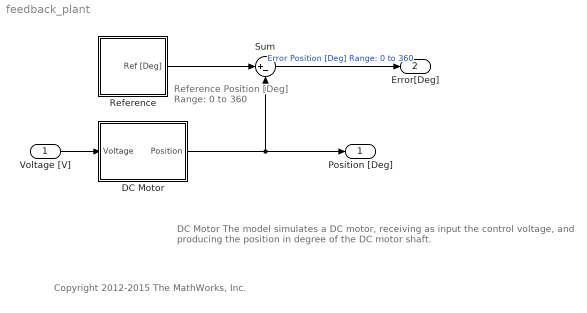
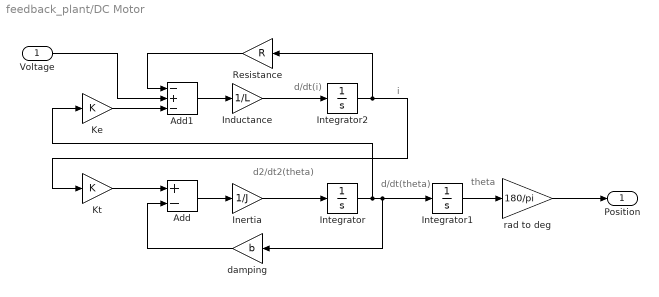
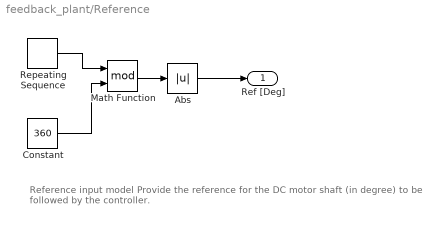
/*
 * feedback_plant.c
 *
 * Academic License - for use in teaching, academic research, and meeting
 * course requirements at degree granting institutions only.  Not for
 * government, commercial, or other organizational use.
 *
 * Code generation for model "feedback_plant".
 *
 * Model version              : 1.30
 * Simulink Coder version : 8.10 (R2016a) 10-Feb-2016
 * C source code generated on : Tue Jul 18 02:04:25 2017
 *
 * Target selection: NIVeriStand.tlc
 * Note: GRT includes extra infrastructure and instrumentation for prototyping
 * Embedded hardware selection: Intel->x86/Pentium
 * Code generation objectives: Unspecified
 * Validation result: Not run
 */

#include "feedback_plant.h"
#include "feedback_plant_private.h"

/* Block signals (auto storage) */
B_feedback_plant_T feedback_plant_B;

/* Continuous states */
X_feedback_plant_T feedback_plant_X;

/* External inputs (root inport signals with auto storage) */
ExtU_feedback_plant_T feedback_plant_U;

/* External outputs (root outports fed by signals with auto storage) */
ExtY_feedback_plant_T feedback_plant_Y;

/* Real-time model */
RT_MODEL_feedback_plant_T feedback_plant_M_;
RT_MODEL_feedback_plant_T *const feedback_plant_M = &feedback_plant_M_;
real_T look1_binlxpw(real_T u0, const real_T bp0[], const real_T table[],
                     uint32_T maxIndex)
{
  real_T frac;
  uint32_T iRght;
  uint32_T iLeft;
  uint32_T bpIdx;

  /* Lookup 1-D
     Search method: 'binary'
     Use previous index: 'off'
     Interpolation method: 'Linear'
     Extrapolation method: 'Linear'
     Use last breakpoint for index at or above upper limit: 'off'
     Remove protection against out-of-range input in generated code: 'off'
   */
  /* Prelookup - Index and Fraction
     Index Search method: 'binary'
     Extrapolation method: 'Linear'
     Use previous index: 'off'
     Use last breakpoint for index at or above upper limit: 'off'
     Remove protection against out-of-range input in generated code: 'off'
   */
  if (u0 <= bp0[0U]) {
    iLeft = 0U;
    frac = (u0 - bp0[0U]) / (bp0[1U] - bp0[0U]);
  } else if (u0 < bp0[maxIndex]) {
    /* Binary Search */
    bpIdx = maxIndex >> 1U;
    iLeft = 0U;
    iRght = maxIndex;
    while (iRght - iLeft > 1U) {
      if (u0 < bp0[bpIdx]) {
        iRght = bpIdx;
      } else {
        iLeft = bpIdx;
      }

      bpIdx = (iRght + iLeft) >> 1U;
    }

    frac = (u0 - bp0[iLeft]) / (bp0[iLeft + 1U] - bp0[iLeft]);
  } else {
    iLeft = maxIndex - 1U;
    frac = (u0 - bp0[maxIndex - 1U]) / (bp0[maxIndex] - bp0[maxIndex - 1U]);
  }

  /* Interpolation 1-D
     Interpolation method: 'Linear'
     Use last breakpoint for index at or above upper limit: 'off'
     Overflow mode: 'portable wrapping'
   */
  return (table[iLeft + 1U] - table[iLeft]) * frac + table[iLeft];
}

/* Simplified version of numjac.cpp, for use with RTW. */
void local_numjac( RTWSolverInfo *si, real_T *y, const real_T *Fty, real_T *fac,
                  real_T *dFdy )
{
  /* constants */
  real_T THRESH = 1e-6;
  real_T EPS = 2.2e-16;                /* utGetEps(); */
  real_T BL = pow(EPS, 0.75);
  real_T BU = pow(EPS, 0.25);
  real_T FACMIN = pow(EPS, 0.78);
  real_T FACMAX = 0.1;
  int_T nx = 3;
  real_T *x = rtsiGetContStates(si);
  real_T del;
  real_T difmax;
  real_T FdelRowmax;
  real_T temp;
  real_T Fdiff;
  real_T maybe;
  real_T xscale;
  real_T fscale;
  real_T *p;
  int_T rowmax;
  int_T i,j;
  if (x != y)
    (void) memcpy(x, y,
                  (uint_T)nx*sizeof(real_T));
  rtsiSetSolverComputingJacobian(si,true);
  for (p = dFdy, j = 0; j < nx; j++, p += nx) {
    /* Select an increment del for a difference approximation to
       column j of dFdy.  The vector fac accounts for experience
       gained in previous calls to numjac. */
    xscale = fabs(x[j]);
    if (xscale < THRESH)
      xscale = THRESH;
    temp = (x[j] + fac[j]*xscale);
    del = temp - y[j];
    while (del == 0.0) {
      if (fac[j] < FACMAX) {
        fac[j] *= 100.0;
        if (fac[j] > FACMAX)
          fac[j] = FACMAX;
        temp = (x[j] + fac[j]*xscale);
        del = temp - x[j];
      } else {
        del = THRESH;                  /* thresh is nonzero */
        break;
      }
    }

    /* Keep del pointing into region. */
    if (Fty[j] >= 0.0)
      del = fabs(del);
    else
      del = -fabs(del);

    /* Form a difference approximation to column j of dFdy. */
    temp = x[j];
    x[j] += del;
    feedback_plant_output();
    rtsiSetdX(si,p);
    feedback_plant_derivatives();
    x[j] = temp;
    difmax = 0.0;
    rowmax = 0;
    FdelRowmax = p[0];
    temp = 1.0 / del;
    for (i = 0; i < nx; i++) {
      Fdiff = p[i] - Fty[i];
      maybe = fabs(Fdiff);
      if (maybe > difmax) {
        difmax = maybe;
        rowmax = i;
        FdelRowmax = p[i];
      }

      p[i] = temp * Fdiff;
    }

    /* Adjust fac for next call to numjac. */
    if (((FdelRowmax != 0.0) && (Fty[rowmax] != 0.0)) || (difmax == 0.0)) {
      fscale = fabs(FdelRowmax);
      if (fscale < fabs(Fty[rowmax]))
        fscale = fabs(Fty[rowmax]);
      if (difmax <= BL*fscale) {
        /* The difference is small, so increase the increment. */
        fac[j] *= 10.0;
        if (fac[j] > FACMAX)
          fac[j] = FACMAX;
      } else if (difmax > BU*fscale) {
        /* The difference is large, so reduce the increment. */
        fac[j] *= 0.1;
        if (fac[j] < FACMIN)
          fac[j] = FACMIN;
      }
    }
  }

  rtsiSetSolverComputingJacobian(si,false);
}                                      /* end local_numjac */

/*
 * This function updates continuous states using the ODE14x fixed-step
 * solver algorithm
 */
static void rt_ertODEUpdateContinuousStates(RTWSolverInfo *si )
{
  /* Solver Matrices */
  static int_T rt_ODE14x_N[4] = { 12, 8, 6, 4 };

  time_T t0 = rtsiGetT(si);
  time_T t1 = t0;
  time_T h = rtsiGetStepSize(si);
  real_T *x1 = rtsiGetContStates(si);
  int_T order = rtsiGetSolverExtrapolationOrder(si);
  int_T numIter = rtsiGetSolverNumberNewtonIterations(si);
  ODE14X_IntgData *id = (ODE14X_IntgData *)rtsiGetSolverData(si);
  real_T *x0 = id->x0;
  real_T *f0 = id->f0;
  real_T *x1start = id->x1start;
  real_T *f1 = id->f1;
  real_T *Delta = id->Delta;
  real_T *E = id->E;
  real_T *fac = id->fac;
  real_T *dfdx = id->DFDX;
  real_T *W = id->W;
  int_T *pivots = id->pivots;
  real_T *xtmp = id->xtmp;
  real_T *ztmp = id->ztmp;
  int_T *N = &(rt_ODE14x_N[0]);
  int_T i,j,k,iter;
  int_T nx = 3;
  rtsiSetSimTimeStep(si,MINOR_TIME_STEP);

  /* Save the state values at time t in y, we'll use x as ynew. */
  (void) memcpy(x0, x1,
                (uint_T)nx*sizeof(real_T));

  /* Assumes that rtsiSetT and ModelOutputs are up-to-date */

  /* f0 = f(t,y) */
  rtsiSetdX(si, f0);
  feedback_plant_derivatives();
  local_numjac(si,x0,f0,fac,dfdx );
  for (j = 0; j < order; j++) {
    real_T *p;
    real_T hN = h/N[j];

    /* Get the iteration matrix and solution at t0 */

    /* [L,U] = lu(M - hN*J) */
    (void) memcpy(W, dfdx,
                  (uint_T)nx*nx*sizeof(real_T));
    for (p = W, i = 0; i < nx*nx; i++, p++) {
      *p *= (-hN);
    }

    for (p = W, i = 0; i < nx; i++, p += (nx+1)) {
      *p += 1.0;
    }

    rt_lu_real(W, nx,
               pivots);

    /* First Newton's iteration at t0. */
    /* rhs = hN*f0 */
    for (i = 0; i < nx; i++) {
      Delta[i] = hN*f0[i];
    }

    /* Delta = (U \ (L \ rhs)) */
    rt_ForwardSubstitutionRR_Dbl(W, Delta,
      f1, nx,
      1, pivots,
      1);
    rt_BackwardSubstitutionRR_Dbl(W+nx*nx-1, f1+nx-1,
      Delta, nx,
      1, 0);

    /* ytmp = y0 + Delta
       ztmp = (ytmp-y0)/h
     */
    (void) memcpy(x1, x0,
                  (uint_T)nx*sizeof(real_T));
    for (i = 0; i < nx; i++) {
      x1[i] += Delta[i];
      ztmp[i] = Delta[i]/hN;
    }

    /* Additional Newton's iterations, if desired.
       for iter = 2:NewtIter
       rhs = hN*feval(odefun,tn,ytmp,extraArgs{:}) - M*(ytmp - yn);
       if statedepM   % only for state dep. Mdel ~= 0
       Mdel = M - feval(massfun,tn,ytmp);
       rhs = rhs + Mdel*ztmp*h;
       end
       Delta = ( U \ ( L \ rhs ) );
       ytmp = ytmp + Delta;
       ztmp = (ytmp - yn)/h
       end
     */
    rtsiSetT(si, t0);
    rtsiSetdX(si, f1);
    for (iter = 1; iter < numIter; iter++) {
      feedback_plant_output();
      feedback_plant_derivatives();
      for (i = 0; i < nx; i++) {
        Delta[i] = hN*f1[i];
        xtmp[i] = x1[i] - x0[i];
      }

      /* rhs = hN*f(tn,ytmp) - (ytmp-yn) */
      for (i = 0; i < nx; i++) {
        Delta[i] -= xtmp[i];
      }

      rt_ForwardSubstitutionRR_Dbl(W, Delta,
        f1, nx,
        1, pivots,
        1);
      rt_BackwardSubstitutionRR_Dbl(W+nx*nx-1, f1+nx-1,
        Delta, nx,
        1, 0);

      /* ytmp = ytmp + delta
         ztmp = (ytmp - yn)/h
       */
      for (i = 0; i < nx; i++) {
        x1[i] += Delta[i];
        ztmp[i] = (x1[i] - x0[i])/hN;
      }
    }

    /* Steps from t0+hN to t1 -- subintegration of N(j) steps for extrapolation
       ttmp = t0;
       for i = 2:N(j)
       ttmp = ttmp + hN
       ytmp0 = ytmp;
       for iter = 1:NewtIter
       rhs = (ytmp0 - ytmp) + hN*feval(odefun,ttmp,ytmp,extraArgs{:});
       Delta = ( U \ ( L \ rhs ) );
       ytmp = ytmp + Delta;
       end
       end
     */
    for (k = 1; k < N[j]; k++) {
      t1 = t0 + k*hN;
      (void) memcpy(x1start, x1,
                    (uint_T)nx*sizeof(real_T));
      rtsiSetT(si, t1);
      rtsiSetdX(si, f1);
      for (iter = 0; iter < numIter; iter++) {
        feedback_plant_output();
        feedback_plant_derivatives();
        if (iter == 0) {
          for (i = 0; i < nx; i++) {
            Delta[i] = hN*f1[i];
          }
        } else {
          for (i = 0; i < nx; i++) {
            Delta[i] = hN*f1[i];
            xtmp[i] = (x1[i]-x1start[i]);
          }

          /* rhs = hN*f(tn,ytmp) - M*(ytmp-yn) */
          for (i = 0; i < nx; i++) {
            Delta[i] -= xtmp[i];
          }
        }

        rt_ForwardSubstitutionRR_Dbl(W, Delta,
          f1, nx,
          1, pivots,
          1);
        rt_BackwardSubstitutionRR_Dbl(W+nx*nx-1, f1+nx-1,
          Delta, nx,
          1, 0);

        /* ytmp = ytmp + Delta
           ztmp = (ytmp - ytmp0)/h
         */
        for (i = 0; i < nx; i++) {
          x1[i] += Delta[i];
          ztmp[i] = (x1[i] - x1start[i])/hN;
        }
      }
    }

    /* Extrapolate to order j
       E(:,j) = ytmp
       for k = j:-1:2
       coef = N(k-1)/(N(j) - N(k-1))
       E(:,k-1) = E(:,k) + coef*( E(:,k) - E(:,k-1) )
       end
     */
    (void) memcpy(&(E[nx*j]), x1,
                  (uint_T)nx*sizeof(real_T));
    for (k = j; k > 0; k--) {
      real_T coef = (real_T)(N[k-1]) / (N[j]-N[k-1]);
      for (i = 0; i < nx; i++) {
        x1[i] = E[nx*k+i] + coef*(E[nx*k+i] - E[nx*(k-1)+i]);
      }

      (void) memcpy(&(E[nx*(k-1)]), x1,
                    (uint_T)nx*sizeof(real_T));
    }
  }

  /* x1 = E(:,1); */
  (void) memcpy(x1, E,
                (uint_T)nx*sizeof(real_T));

  /* t1 = t0 + h; */
  rtsiSetT(si,rtsiGetSolverStopTime(si));
  rtsiSetSimTimeStep(si,MAJOR_TIME_STEP);
}

real_T rt_roundd_snf(real_T u)
{
  real_T y;
  if (fabs(u) < 4.503599627370496E+15) {
    if (u >= 0.5) {
      y = floor(u + 0.5);
    } else if (u > -0.5) {
      y = u * 0.0;
    } else {
      y = ceil(u - 0.5);
    }
  } else {
    y = u;
  }

  return y;
}

real_T rt_remd_snf(real_T u0, real_T u1)
{
  real_T y;
  real_T u1_0;
  if (!((!rtIsNaN(u0)) && (!rtIsInf(u0)) && ((!rtIsNaN(u1)) && (!rtIsInf(u1)))))
  {
    y = (rtNaN);
  } else {
    if (u1 < 0.0) {
      u1_0 = ceil(u1);
    } else {
      u1_0 = floor(u1);
    }

    if ((u1 != 0.0) && (u1 != u1_0)) {
      u1_0 = u0 / u1;
      if (fabs(u1_0 - rt_roundd_snf(u1_0)) <= DBL_EPSILON * fabs(u1_0)) {
        y = 0.0;
      } else {
        y = fmod(u0, u1);
      }
    } else {
      y = fmod(u0, u1);
    }
  }

  return y;
}

real_T rt_modd_snf(real_T u0, real_T u1)
{
  real_T y;
  real_T tmp;
  if (u1 == 0.0) {
    y = u0;
  } else if (!((!rtIsNaN(u0)) && (!rtIsInf(u0)) && ((!rtIsNaN(u1)) && (!rtIsInf
                (u1))))) {
    y = (rtNaN);
  } else {
    tmp = u0 / u1;
    if (u1 <= floor(u1)) {
      y = u0 - floor(tmp) * u1;
    } else if (fabs(tmp - rt_roundd_snf(tmp)) <= DBL_EPSILON * fabs(tmp)) {
      y = 0.0;
    } else {
      y = (tmp - floor(tmp)) * u1;
    }
  }

  return y;
}

/* Model output function */
void feedback_plant_output(void)
{
  /* local block i/o variables */
  real_T rtb_MathFunction;
  if (rtmIsMajorTimeStep(feedback_plant_M)) {
    /* set solver stop time */
    if (!(feedback_plant_M->Timing.clockTick0+1)) {
      rtsiSetSolverStopTime(&feedback_plant_M->solverInfo,
                            ((feedback_plant_M->Timing.clockTickH0 + 1) *
        feedback_plant_M->Timing.stepSize0 * 4294967296.0));
    } else {
      rtsiSetSolverStopTime(&feedback_plant_M->solverInfo,
                            ((feedback_plant_M->Timing.clockTick0 + 1) *
        feedback_plant_M->Timing.stepSize0 +
        feedback_plant_M->Timing.clockTickH0 *
        feedback_plant_M->Timing.stepSize0 * 4294967296.0));
    }
  }                                    /* end MajorTimeStep */

  /* Update absolute time of base rate at minor time step */
  if (rtmIsMinorTimeStep(feedback_plant_M)) {
    feedback_plant_M->Timing.t[0] = rtsiGetT(&feedback_plant_M->solverInfo);
  }

  /* Integrator: '<S1>/Integrator1' */
  feedback_plant_B.Integrator1 = feedback_plant_X.Integrator1_CSTATE;

  /* Gain: '<S1>/rad to deg' */
  feedback_plant_B.radtodeg = 57.295779513082323 * feedback_plant_B.Integrator1;

  /* Outport: '<Root>/Position [Deg]' */
  feedback_plant_Y.PositionDeg = feedback_plant_B.radtodeg;

  /* Clock: '<S3>/Clock' */
  rtb_MathFunction = feedback_plant_M->Timing.t[0];

  /* Sum: '<S3>/Sum' incorporates:
   *  S-Function (sfun_tstart): '<S3>/startTime'
   */
  feedback_plant_B.Sum = rtb_MathFunction - (0.0);

  /* Math: '<S3>/Math Function' incorporates:
   *  Constant: '<S3>/Constant'
   */
  rtb_MathFunction = rt_remd_snf(feedback_plant_B.Sum, 4.0);

  /* Lookup_n-D: '<S3>/Look-Up Table1' */
  rtb_MathFunction = look1_binlxpw(rtb_MathFunction,
    feedback_plant_ConstP.LookUpTable1_bp01Data,
    feedback_plant_ConstP.LookUpTable1_tableData, 4U);

  /* Math: '<S2>/Math Function' incorporates:
   *  Constant: '<S2>/Constant'
   */
  rtb_MathFunction = rt_modd_snf(rtb_MathFunction, 360.0);

  /* Abs: '<S2>/Abs' */
  feedback_plant_B.Abs = fabs(rtb_MathFunction);

  /* Sum: '<Root>/Sum' */
  feedback_plant_B.ErrorPositionDegRange0to360 = feedback_plant_B.Abs -
    feedback_plant_B.radtodeg;

  /* Outport: '<Root>/Error[Deg]' */
  feedback_plant_Y.ErrorDeg = feedback_plant_B.ErrorPositionDegRange0to360;

  /* Integrator: '<S1>/Integrator2' */
  feedback_plant_B.Integrator2 = feedback_plant_X.Integrator2_CSTATE;

  /* Gain: '<S1>/Kt' */
  feedback_plant_B.Kt = 0.0274 * feedback_plant_B.Integrator2;

  /* Integrator: '<S1>/Integrator' */
  feedback_plant_B.Integrator = feedback_plant_X.Integrator_CSTATE;

  /* Gain: '<S1>/damping' */
  feedback_plant_B.damping = 3.5066E-6 * feedback_plant_B.Integrator;

  /* Sum: '<S1>/Add' */
  feedback_plant_B.Add = feedback_plant_B.Kt - feedback_plant_B.damping;

  /* Gain: '<S1>/Resistance' */
  feedback_plant_B.Resistance = 4.0 * feedback_plant_B.Integrator2;

  /* Gain: '<S1>/Ke' */
  feedback_plant_B.Ke = 0.0274 * feedback_plant_B.Integrator;

  /* Sum: '<S1>/Add1' incorporates:
   *  Inport: '<Root>/Voltage [V]'
   */
  feedback_plant_B.Add1 = (feedback_plant_U.VoltageV -
    feedback_plant_B.Resistance) - feedback_plant_B.Ke;

  /* Gain: '<S1>/Inductance' */
  feedback_plant_B.Inductance = 363636.36363636365 * feedback_plant_B.Add1;

  /* Gain: '<S1>/Inertia' */
  feedback_plant_B.Inertia = 309750.96022797673 * feedback_plant_B.Add;
}

/* Model update function */
void feedback_plant_update(void)
{
  if (rtmIsMajorTimeStep(feedback_plant_M)) {
    rt_ertODEUpdateContinuousStates(&feedback_plant_M->solverInfo);
  }

  /* Update absolute time for base rate */
  /* The "clockTick0" counts the number of times the code of this task has
   * been executed. The absolute time is the multiplication of "clockTick0"
   * and "Timing.stepSize0". Size of "clockTick0" ensures timer will not
   * overflow during the application lifespan selected.
   * Timer of this task consists of two 32 bit unsigned integers.
   * The two integers represent the low bits Timing.clockTick0 and the high bits
   * Timing.clockTickH0. When the low bit overflows to 0, the high bits increment.
   */
  if (!(++feedback_plant_M->Timing.clockTick0)) {
    ++feedback_plant_M->Timing.clockTickH0;
  }

  feedback_plant_M->Timing.t[0] = rtsiGetSolverStopTime
    (&feedback_plant_M->solverInfo);

  {
    /* Update absolute timer for sample time: [0.001s, 0.0s] */
    /* The "clockTick1" counts the number of times the code of this task has
     * been executed. The absolute time is the multiplication of "clockTick1"
     * and "Timing.stepSize1". Size of "clockTick1" ensures timer will not
     * overflow during the application lifespan selected.
     * Timer of this task consists of two 32 bit unsigned integers.
     * The two integers represent the low bits Timing.clockTick1 and the high bits
     * Timing.clockTickH1. When the low bit overflows to 0, the high bits increment.
     */
    if (!(++feedback_plant_M->Timing.clockTick1)) {
      ++feedback_plant_M->Timing.clockTickH1;
    }

    feedback_plant_M->Timing.t[1] = feedback_plant_M->Timing.clockTick1 *
      feedback_plant_M->Timing.stepSize1 + feedback_plant_M->Timing.clockTickH1 *
      feedback_plant_M->Timing.stepSize1 * 4294967296.0;
  }
}
